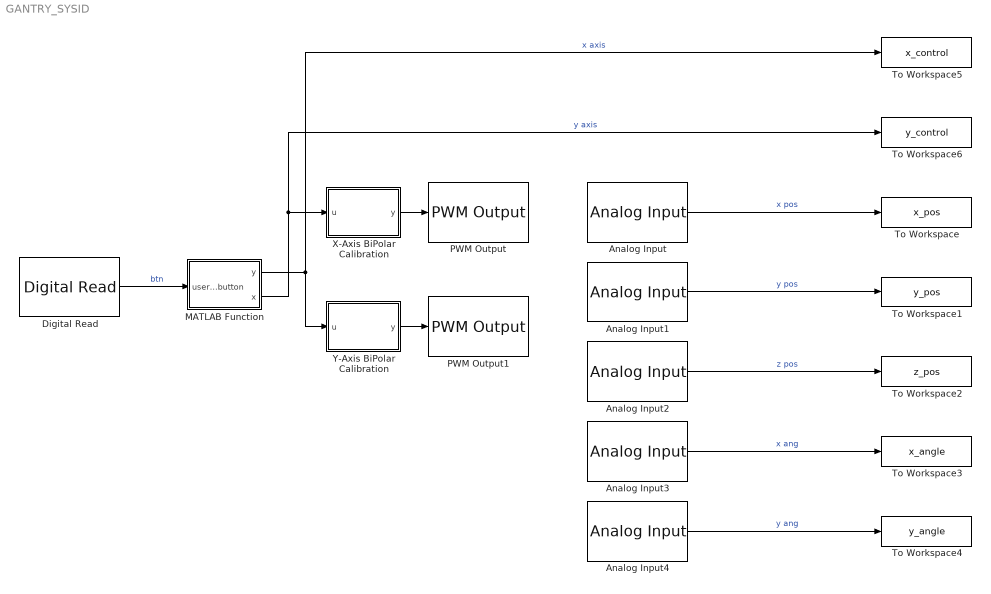
== matlab function GANTRY_SYSID/MATLAB Function ==
function [y, x]= fcn(user_button)

persistent i m button_pressed

if isempty(m)
    m = 0;
    i = 0;
    button_pressed = 0;
end

Fs = 200;

if user_button == 1
    button_pressed = 1;
end

y = 0;
x = 0;
if button_pressed == 1
    if m == 0
        if i < 1*Fs
            x = 0;
        elseif i < 8*Fs
            x = 10;
        else
            x = 0;
            m = 1;
            i = 0;
            button_pressed = 0;
        end
    elseif m == 1
        if i < 1*Fs
            x = 0;
        elseif i < 8*Fs
            x = -10;
        else
            x = 0;
            m = 2;
            i = 0;
            button_pressed = 0;
        end
    elseif m == 2
        if i < 1*Fs
            y = 0;
        elseif i < 8*Fs
            y = 10;
        else
            y = 0;
            m = 3;
            i = 0;
            button_pressed = 0;
        end
    elseif m == 3
        if i < 1*Fs
            y = 0;
        elseif i < 8*Fs
            y = -10;
        else
            y = 0;
            m = 4;
            i = 0;
            button_pressed = 0;
        end
    else
        % Do Nothing
        x = 0;
        y = 0;
    end

    i = i + 1;
end

end

== matlab function GANTRY_SYSID/Y-Axis BiPolar Calibration ==
function y = fcn(u)

y = 3.41*u + 59.49;

== matlab function GANTRY_SYSID/X-Axis BiPolar Calibration ==
function y = fcn(u)

y = 2.758*u + 63.834;

/*
 * Academic License - for use in teaching, academic research, and meeting
 * course requirements at degree granting institutions only.  Not for
 * government, commercial, or other organizational use.
 *
 * File: GANTRY_SYSID.c
 *
 * Code generated for Simulink model 'GANTRY_SYSID'.
 *
 * Model version                  : 1.40
 * Simulink Coder version         : 24.2 (R2024b) 21-Jun-2024
 * C/C++ source code generated on : Wed Oct 16 12:58:46 2024
 *
 * Target selection: ert.tlc
 * Embedded hardware selection: ARM Compatible->ARM Cortex-M
 * Code generation objectives: Unspecified
 * Validation result: Not run
 */

#include "GANTRY_SYSID.h"
#include "GANTRY_SYSID_private.h"

/* Block signals (default storage) */
B_GANTRY_SYSID_T GANTRY_SYSID_B;

/* Block states (default storage) */
DW_GANTRY_SYSID_T GANTRY_SYSID_DW;

/* Real-time model */
static RT_MODEL_GANTRY_SYSID_T GANTRY_SYSID_M_;
RT_MODEL_GANTRY_SYSID_T *const GANTRY_SYSID_M = &GANTRY_SYSID_M_;

/* Model step function */
void GANTRY_SYSID_step(void)
{
  /* MATLABSystem: '<Root>/Analog Input' */
  MW_AnalogIn_Start(GANTRY_SYSID_DW.obj_h5.MW_ANALOGIN_HANDLE);

  /* MATLABSystem: '<Root>/Analog Input' */
  MW_AnalogInSingle_ReadResult(GANTRY_SYSID_DW.obj_h5.MW_ANALOGIN_HANDLE,
    &GANTRY_SYSID_B.xpos, 7);

  /* MATLABSystem: '<Root>/Analog Input1' */
  MW_AnalogIn_Start(GANTRY_SYSID_DW.obj_h.MW_ANALOGIN_HANDLE);

  /* MATLABSystem: '<Root>/Analog Input1' */
  MW_AnalogInSingle_ReadResult(GANTRY_SYSID_DW.obj_h.MW_ANALOGIN_HANDLE,
    &GANTRY_SYSID_B.ypos, 7);

  /* MATLABSystem: '<Root>/Analog Input2' */
  MW_AnalogIn_Start(GANTRY_SYSID_DW.obj_j.MW_ANALOGIN_HANDLE);

  /* MATLABSystem: '<Root>/Analog Input2' */
  MW_AnalogInSingle_ReadResult(GANTRY_SYSID_DW.obj_j.MW_ANALOGIN_HANDLE,
    &GANTRY_SYSID_B.zpos, 7);

  /* MATLABSystem: '<Root>/Analog Input3' */
  MW_AnalogIn_Start(GANTRY_SYSID_DW.obj_b.MW_ANALOGIN_HANDLE);

  /* MATLABSystem: '<Root>/Analog Input3' */
  MW_AnalogInSingle_ReadResult(GANTRY_SYSID_DW.obj_b.MW_ANALOGIN_HANDLE,
    &GANTRY_SYSID_B.xang, 7);

  /* MATLABSystem: '<Root>/Analog Input4' */
  MW_AnalogIn_Start(GANTRY_SYSID_DW.obj.MW_ANALOGIN_HANDLE);

  /* MATLABSystem: '<Root>/Analog Input4' */
  MW_AnalogInSingle_ReadResult(GANTRY_SYSID_DW.obj.MW_ANALOGIN_HANDLE,
    &GANTRY_SYSID_B.yang, 7);

  /* MATLABSystem: '<Root>/Digital Read' */
  GANTRY_SYSID_B.btn = MW_digitalIO_read
    (GANTRY_SYSID_DW.obj_h0.MW_DIGITALIO_HANDLE);

  /* MATLAB Function: '<Root>/MATLAB Function' */
  if (GANTRY_SYSID_B.btn) {
    GANTRY_SYSID_DW.button_pressed = 1.0;
  }

  GANTRY_SYSID_B.y_h = 0.0;
  GANTRY_SYSID_B.x = 0.0;
  if (GANTRY_SYSID_DW.button_pressed == 1.0) {
    if (GANTRY_SYSID_DW.m == 0.0) {
      if (GANTRY_SYSID_DW.i < 200.0) {
        GANTRY_SYSID_B.x = 0.0;
      } else if (GANTRY_SYSID_DW.i < 1600.0) {
        GANTRY_SYSID_B.x = 10.0;
      } else {
        GANTRY_SYSID_B.x = 0.0;
        GANTRY_SYSID_DW.m = 1.0;
        GANTRY_SYSID_DW.i = 0.0;
        GANTRY_SYSID_DW.button_pressed = 0.0;
      }
    } else if (GANTRY_SYSID_DW.m == 1.0) {
      if (GANTRY_SYSID_DW.i < 200.0) {
        GANTRY_SYSID_B.x = 0.0;
      } else if (GANTRY_SYSID_DW.i < 1600.0) {
        GANTRY_SYSID_B.x = -10.0;
      } else {
        GANTRY_SYSID_B.x = 0.0;
        GANTRY_SYSID_DW.m = 2.0;
        GANTRY_SYSID_DW.i = 0.0;
        GANTRY_SYSID_DW.button_pressed = 0.0;
      }
    } else if (GANTRY_SYSID_DW.m == 2.0) {
      if (GANTRY_SYSID_DW.i < 200.0) {
        GANTRY_SYSID_B.y_h = 0.0;
      } else if (GANTRY_SYSID_DW.i < 1600.0) {
        GANTRY_SYSID_B.y_h = 10.0;
      } else {
        GANTRY_SYSID_B.y_h = 0.0;
        GANTRY_SYSID_DW.m = 3.0;
        GANTRY_SYSID_DW.i = 0.0;
        GANTRY_SYSID_DW.button_pressed = 0.0;
      }
    } else if (GANTRY_SYSID_DW.m == 3.0) {
      if (GANTRY_SYSID_DW.i < 200.0) {
        GANTRY_SYSID_B.y_h = 0.0;
      } else if (GANTRY_SYSID_DW.i < 1600.0) {
        GANTRY_SYSID_B.y_h = -10.0;
      } else {
        GANTRY_SYSID_B.y_h = 0.0;
        GANTRY_SYSID_DW.m = 4.0;
        GANTRY_SYSID_DW.i = 0.0;
        GANTRY_SYSID_DW.button_pressed = 0.0;
      }
    } else {
      GANTRY_SYSID_B.x = 0.0;
      GANTRY_SYSID_B.y_h = 0.0;
    }

    GANTRY_SYSID_DW.i++;
  }

  /* End of MATLAB Function: '<Root>/MATLAB Function' */

  /* MATLABSystem: '<Root>/PWM Output' incorporates:
   *  MATLAB Function: '<Root>/X-Axis BiPolar Calibration'
   */
  MW_PWM_SetDutyCycle(GANTRY_SYSID_DW.obj_o.MW_PWM_HANDLE, 2.758 *
                      GANTRY_SYSID_B.x + 63.834);

  /* MATLABSystem: '<Root>/PWM Output1' incorporates:
   *  MATLAB Function: '<Root>/Y-Axis BiPolar Calibration'
   */
  MW_PWM_SetDutyCycle(GANTRY_SYSID_DW.obj_m.MW_PWM_HANDLE, 3.41 *
                      GANTRY_SYSID_B.y_h + 59.49);

  /* Update absolute time for base rate */
  /* The "clockTick0" counts the number of times the code of this task has
   * been executed. The absolute time is the multiplication of "clockTick0"
   * and "Timing.stepSize0". Size of "clockTick0" ensures timer will not
   * overflow during the application lifespan selected.
   */
  GANTRY_SYSID_M->Timing.taskTime0 =
    ((time_T)(++GANTRY_SYSID_M->Timing.clockTick0)) *
    GANTRY_SYSID_M->Timing.stepSize0;
}
